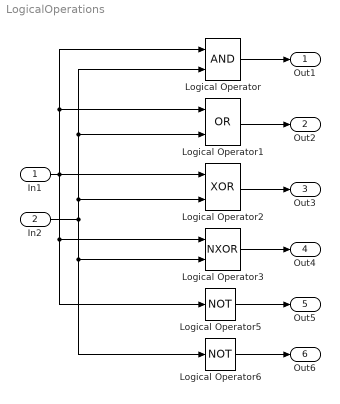
/*
 * File: LogicalOperations.c
 *
 * Code generated for Simulink model 'LogicalOperations'.
 *
 * Model version                  : 1.1
 * Simulink Coder version         : 9.0 (R2018b) 24-May-2018
 * C/C++ source code generated on : Wed Feb  2 17:13:19 2022
 *
 * Target selection: ert.tlc
 * Embedded hardware selection: Intel->x86-64 (Windows64)
 * Code generation objectives: Unspecified
 * Validation result: Not run
 */

#include "LogicalOperations.h"
#include "LogicalOperations_private.h"

/* External inputs (root inport signals with default storage) */
ExtU_LogicalOperations_T LogicalOperations_U;

/* External outputs (root outports fed by signals with default storage) */
ExtY_LogicalOperations_T LogicalOperations_Y;

/* Real-time model */
RT_MODEL_LogicalOperations_T LogicalOperations_M_;
RT_MODEL_LogicalOperations_T *const LogicalOperations_M = &LogicalOperations_M_;

/* Model step function */
void LogicalOperations_step(void)
{
  /* Outport: '<Root>/Out1' incorporates:
   *  Inport: '<Root>/In1'
   *  Inport: '<Root>/In2'
   *  Logic: '<Root>/Logical Operator'
   */
  LogicalOperations_Y.Out1 = (LogicalOperations_U.In1 && LogicalOperations_U.In2);

  /* Outport: '<Root>/Out2' incorporates:
   *  Inport: '<Root>/In1'
   *  Inport: '<Root>/In2'
   *  Logic: '<Root>/Logical Operator1'
   */
  LogicalOperations_Y.Out2 = (LogicalOperations_U.In1 || LogicalOperations_U.In2);

  /* Outport: '<Root>/Out3' incorporates:
   *  Inport: '<Root>/In1'
   *  Inport: '<Root>/In2'
   *  Logic: '<Root>/Logical Operator2'
   */
  LogicalOperations_Y.Out3 = LogicalOperations_U.In1 ^ LogicalOperations_U.In2;

  /* Outport: '<Root>/Out4' incorporates:
   *  Inport: '<Root>/In1'
   *  Inport: '<Root>/In2'
   *  Logic: '<Root>/Logical Operator3'
   */
  LogicalOperations_Y.Out4 = (LogicalOperations_U.In1 == LogicalOperations_U.In2);

  /* Outport: '<Root>/Out5' incorporates:
   *  Inport: '<Root>/In1'
   *  Logic: '<Root>/Logical Operator5'
   */
  LogicalOperations_Y.Out5 = !LogicalOperations_U.In1;

  /* Outport: '<Root>/Out6' incorporates:
   *  Inport: '<Root>/In2'
   *  Logic: '<Root>/Logical Operator6'
   */
  LogicalOperations_Y.Out6 = !LogicalOperations_U.In2;
}
